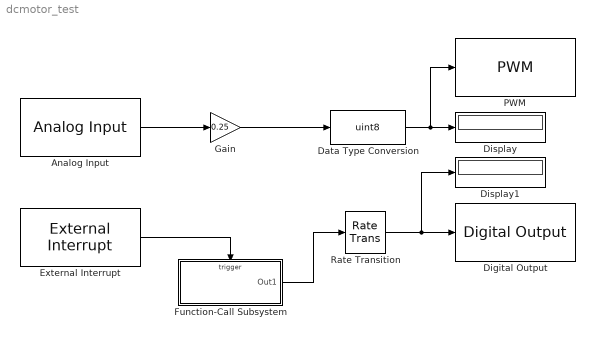
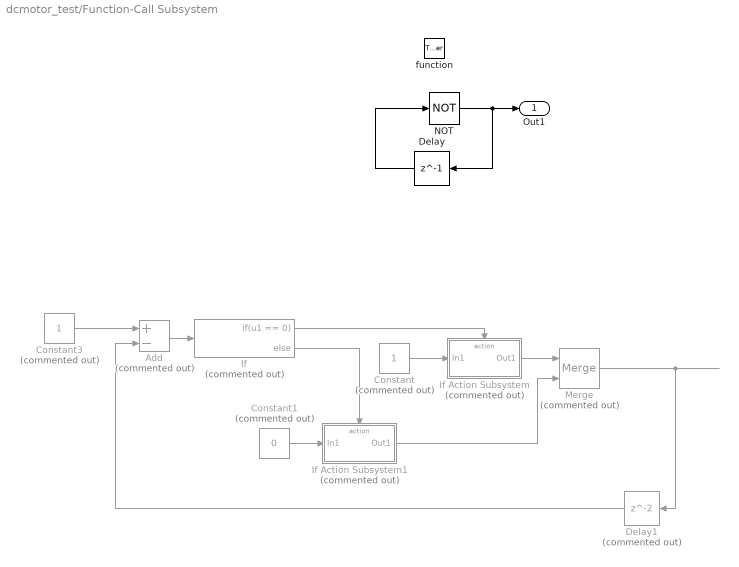
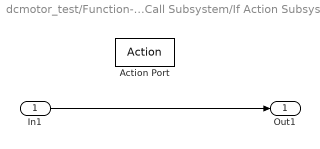
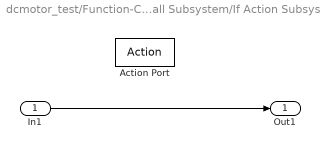
/*
 * Academic License - for use in teaching, academic research, and meeting
 * course requirements at degree granting institutions only.  Not for
 * government, commercial, or other organizational use.
 *
 * File: dcmotor_test.c
 *
 * Code generated for Simulink model 'dcmotor_test'.
 *
 * Model version                  : 1.4
 * Simulink Coder version         : 23.2 (R2023b) 01-Aug-2023
 * C/C++ source code generated on : Mon Feb 12 22:14:58 2024
 *
 * Target selection: ert.tlc
 * Embedded hardware selection: Atmel->AVR
 * Code generation objectives: Unspecified
 * Validation result: Not run
 */

#include "dcmotor_test.h"
#include "dcmotor_test_private.h"
#include "rtwtypes.h"
#include "rt_nonfinite.h"

/* Block signals (default storage) */
B_dcmotor_test_T dcmotor_test_B;

/* Block states (default storage) */
DW_dcmotor_test_T dcmotor_test_DW;

/* Real-time model */
static RT_MODEL_dcmotor_test_T dcmotor_test_M_;
RT_MODEL_dcmotor_test_T *const dcmotor_test_M = &dcmotor_test_M_;

/* Callback for Hardware Interrupt Block: '<Root>/External Interrupt' */
void MW_ISR_2(void)
{
  /* Call the system: <Root>/Function-Call Subsystem */
  {
    /* Reset subsysRan breadcrumbs */
    srClearBC(dcmotor_test_DW.FunctionCallSubsystem_SubsysRan);

    /* S-Function (arduinoextint_sfcn): '<Root>/External Interrupt' */

    /* Output and update for function-call system: '<Root>/Function-Call Subsystem' */

    /* Asynchronous task (with no priority assigned)
     * reads absolute time */
    switch (dcmotor_test_M->Timing.rtmDbBufWriteBuf1) {
     case 0:
      dcmotor_test_M->Timing.rtmDbBufReadBuf1 = 1;
      break;

     case 1:
      dcmotor_test_M->Timing.rtmDbBufReadBuf1 = 0;
      break;

     default:
      dcmotor_test_M->Timing.rtmDbBufReadBuf1 =
        dcmotor_test_M->Timing.rtmDbBufLastBufWr1;
      break;
    }

    dcmotor_test_M->Timing.clockTick1 =
      dcmotor_test_M->Timing.rtmDbBufClockTick1
      [dcmotor_test_M->Timing.rtmDbBufReadBuf1];
    dcmotor_test_M->Timing.rtmDbBufReadBuf1 = 0xFF;

    /* Logic: '<S1>/NOT' incorporates:
     *  Delay: '<S1>/Delay'
     */
    dcmotor_test_DW.Delay_DSTATE = !dcmotor_test_DW.Delay_DSTATE;
    dcmotor_test_DW.FunctionCallSubsystem_SubsysRan = 4;

    /* End of Outputs for S-Function (arduinoextint_sfcn): '<Root>/External Interrupt' */
  }

  extmodeEvent(1,((dcmotor_test_M->Timing.clockTick1) * 0.01));
}

/* Model step function */
void dcmotor_test_step(void)
{
  uint16_T b_varargout_1;

  /* MATLABSystem: '<Root>/Analog Input' */
  if (dcmotor_test_DW.obj.SampleTime != dcmotor_test_P.AnalogInput_SampleTime) {
    dcmotor_test_DW.obj.SampleTime = dcmotor_test_P.AnalogInput_SampleTime;
  }

  dcmotor_test_DW.obj.AnalogInDriverObj.MW_ANALOGIN_HANDLE =
    MW_AnalogIn_GetHandle(62UL);
  MW_AnalogInSingle_ReadResult
    (dcmotor_test_DW.obj.AnalogInDriverObj.MW_ANALOGIN_HANDLE, &b_varargout_1,
     MW_ANALOGIN_UINT16);

  /* DataTypeConversion: '<Root>/Data Type Conversion' incorporates:
   *  Gain: '<Root>/Gain'
   *  MATLABSystem: '<Root>/Analog Input'
   * */
  dcmotor_test_B.DataTypeConversion = (uint8_T)(((uint32_T)
    dcmotor_test_P.Gain_Gain * b_varargout_1) >> 17);

  /* MATLABSystem: '<Root>/PWM' */
  dcmotor_test_DW.obj_b.PWMDriverObj.MW_PWM_HANDLE = MW_PWM_GetHandle(11UL);
  MW_PWM_SetDutyCycle(dcmotor_test_DW.obj_b.PWMDriverObj.MW_PWM_HANDLE, (real_T)
                      dcmotor_test_B.DataTypeConversion);

  /* RateTransition: '<Root>/Rate Transition' incorporates:
   *  Delay: '<S1>/Delay'
   */
  dcmotor_test_B.RateTransition = dcmotor_test_DW.Delay_DSTATE;

  /* MATLABSystem: '<Root>/Digital Output' */
  writeDigitalPin(13, (uint8_T)dcmotor_test_B.RateTransition);

  {                                    /* Sample time: [0.01s, 0.0s] */
  }

  /* Update absolute time for base rate */
  /* The "clockTick0" counts the number of times the code of this task has
   * been executed. The absolute time is the multiplication of "clockTick0"
   * and "Timing.stepSize0". Size of "clockTick0" ensures timer will not
   * overflow during the application lifespan selected.
   */
  dcmotor_test_M->Timing.taskTime0 =
    ((time_T)(++dcmotor_test_M->Timing.clockTick0)) *
    dcmotor_test_M->Timing.stepSize0;
  switch (dcmotor_test_M->Timing.rtmDbBufReadBuf1) {
   case 0:
    dcmotor_test_M->Timing.rtmDbBufWriteBuf1 = 1;
    break;

   case 1:
    dcmotor_test_M->Timing.rtmDbBufWriteBuf1 = 0;
    break;

   default:
    dcmotor_test_M->Timing.rtmDbBufWriteBuf1 =
      !dcmotor_test_M->Timing.rtmDbBufLastBufWr1;
    break;
  }

  dcmotor_test_M->Timing.rtmDbBufClockTick1
    [dcmotor_test_M->Timing.rtmDbBufWriteBuf1] =
    dcmotor_test_M->Timing.clockTick0;
  dcmotor_test_M->Timing.rtmDbBufLastBufWr1 =
    dcmotor_test_M->Timing.rtmDbBufWriteBuf1;
  dcmotor_test_M->Timing.rtmDbBufWriteBuf1 = 0xFF;
}
